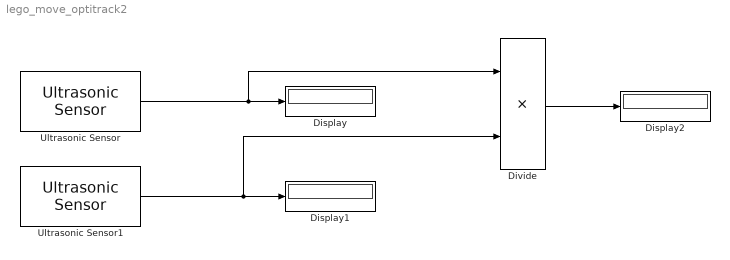
/*
 * Academic License - for use in teaching, academic research, and meeting
 * course requirements at degree granting institutions only.  Not for
 * government, commercial, or other organizational use.
 *
 * File: lego_move_optitrack2.c
 *
 * Code generated for Simulink model 'lego_move_optitrack2'.
 *
 * Model version                  : 1.13
 * Simulink Coder version         : 8.12 (R2017a) 16-Feb-2017
 * C/C++ source code generated on : Tue Aug 08 12:11:07 2017
 *
 * Target selection: ert.tlc
 * Embedded hardware selection: ARM Compatible->ARM 9
 * Code generation objectives: Unspecified
 * Validation result: Not run
 */

#include "lego_move_optitrack2.h"
#include "lego_move_optitrack2_private.h"
#include "lego_move_optitrack2_dt.h"

/* Block signals (auto storage) */
B_lego_move_optitrack2_T lego_move_optitrack2_B;

/* Real-time model */
RT_MODEL_lego_move_optitrack2_T lego_move_optitrack2_M_;
RT_MODEL_lego_move_optitrack2_T *const lego_move_optitrack2_M =
  &lego_move_optitrack2_M_;

/* Model step function */
void lego_move_optitrack2_step(void)
{
  /* S-Function (ev3_ultrasonic_sensor): '<Root>/Ultrasonic Sensor' */
  lego_move_optitrack2_B.UltrasonicSensor = getUltrasonicSensorValue(1U);

  /* S-Function (ev3_ultrasonic_sensor): '<Root>/Ultrasonic Sensor1' */
  lego_move_optitrack2_B.UltrasonicSensor1 = getUltrasonicSensorValue(4U);

  /* Product: '<Root>/Divide' */
  lego_move_optitrack2_B.Divide = (uint16_T)((uint32_T)
    lego_move_optitrack2_B.UltrasonicSensor *
    lego_move_optitrack2_B.UltrasonicSensor1);

  /* External mode */
  rtExtModeUploadCheckTrigger(1);

  {                                    /* Sample time: [0.2s, 0.0s] */
    rtExtModeUpload(0, lego_move_optitrack2_M->Timing.taskTime0);
  }

  /* signal main to stop simulation */
  {                                    /* Sample time: [0.2s, 0.0s] */
    if ((rtmGetTFinal(lego_move_optitrack2_M)!=-1) &&
        !((rtmGetTFinal(lego_move_optitrack2_M)-
           lego_move_optitrack2_M->Timing.taskTime0) >
          lego_move_optitrack2_M->Timing.taskTime0 * (DBL_EPSILON))) {
      rtmSetErrorStatus(lego_move_optitrack2_M, "Simulation finished");
    }

    if (rtmGetStopRequested(lego_move_optitrack2_M)) {
      rtmSetErrorStatus(lego_move_optitrack2_M, "Simulation finished");
    }
  }

  /* Update absolute time for base rate */
  /* The "clockTick0" counts the number of times the code of this task has
   * been executed. The absolute time is the multiplication of "clockTick0"
   * and "Timing.stepSize0". Size of "clockTick0" ensures timer will not
   * overflow during the application lifespan selected.
   */
  lego_move_optitrack2_M->Timing.taskTime0 =
    (++lego_move_optitrack2_M->Timing.clockTick0) *
    lego_move_optitrack2_M->Timing.stepSize0;
}
